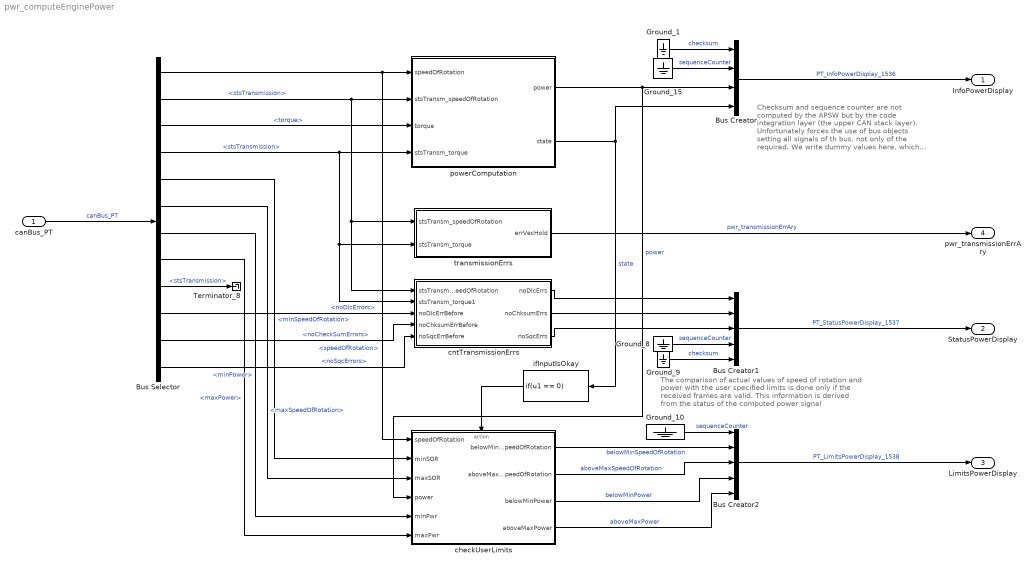
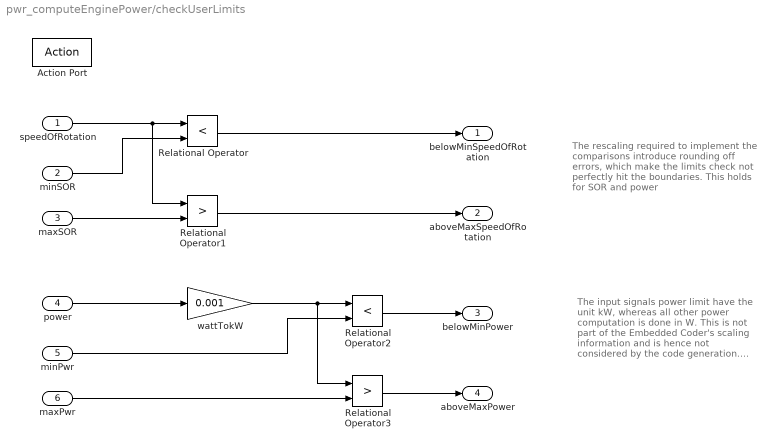
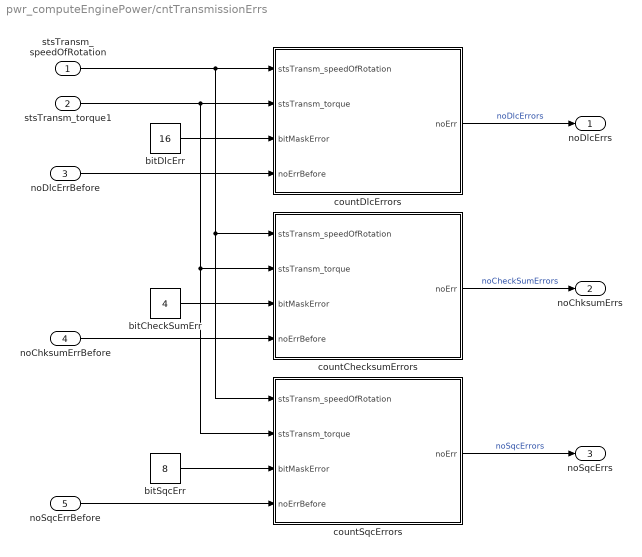
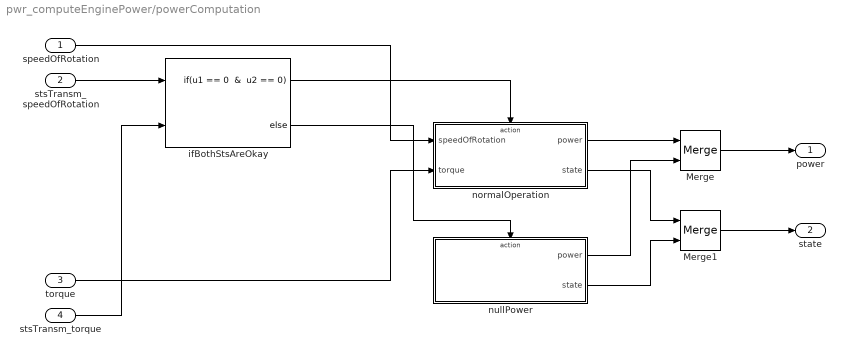
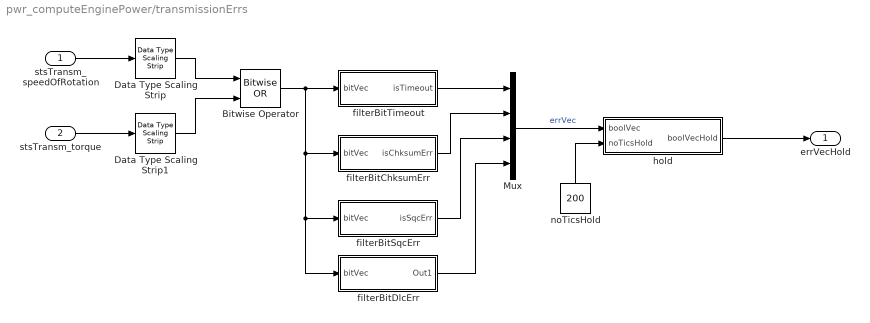
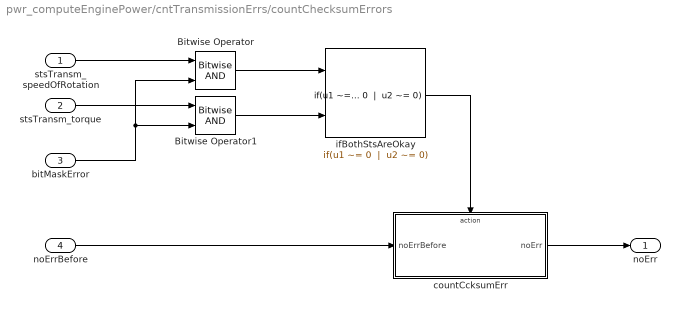
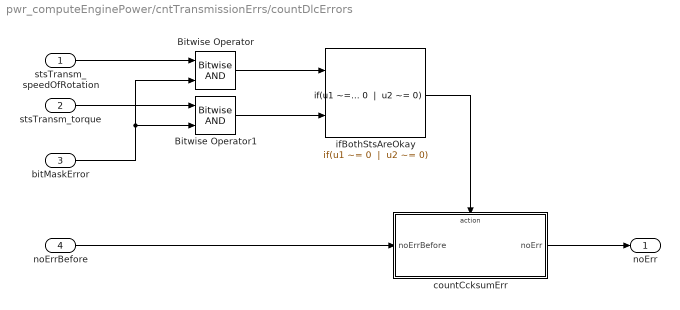
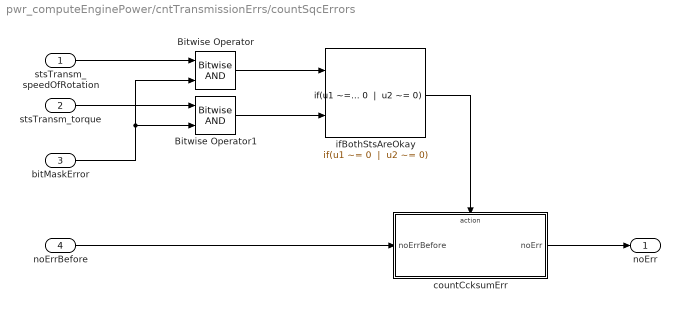
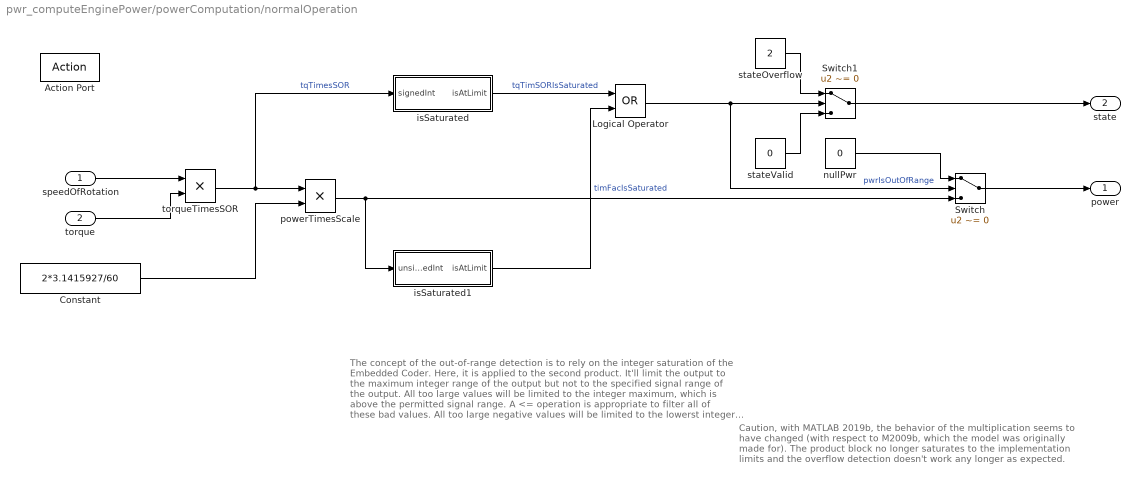
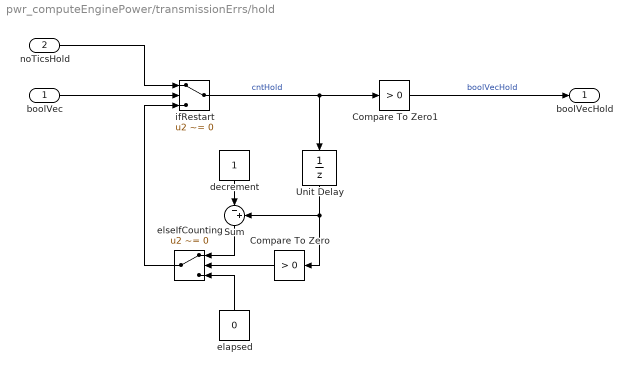
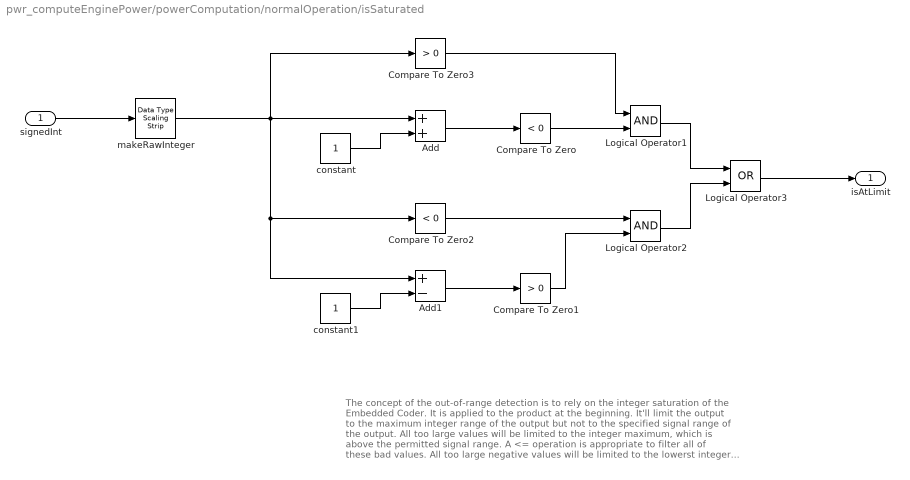
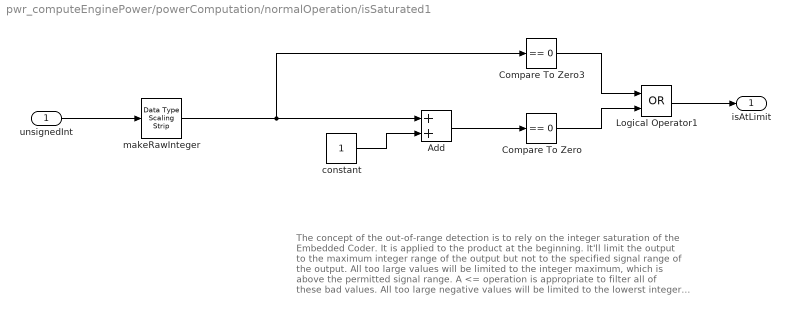
== system pwr_computeEnginePower/powerComputation/nullPower ==
  Action Port : ActionPort  PropagateVarSize=During execution  ActionPortLabel=else
  Constant : Constant  Value=0  OutDataTypeStr=Inherit: Inherit via back propagation
  stateInvalidInput : Constant  OutDataTypeStr=uint8
  power : Outport  InitialOutput=0
  state : Outport  Port=2  InitialOutput=1
  wires:
  Constant/1 -> power/1
  stateInvalidInput/1 -> state/1

== system pwr_computeEnginePower/transmissionErrs/filterBitChksumErr ==
  bitVec : Inport
  Compare To Zero : simulink/Logic and Bit Operations/Compare To Zero  relop=~=  OutDataTypeStr=boolean  ZeroCross=off
  andBitChksumErr : simulink/Logic and Bit Operations/Bitwise Operator  logicop=AND  UseBitMask=on  BitMask=4  BitMaskRealWorld=Stored Integer
  isChksumErr : Outport
  wires:
  bitVec/1 -> andBitChksumErr/1
  andBitChksumErr/1 -> Compare To Zero/1
  Compare To Zero/1 -> isChksumErr/1  "isChksumErr"

== system pwr_computeEnginePower/transmissionErrs/filterBitDlcErr ==
  bitVec : Inport
  Compare To Zero : simulink/Logic and Bit Operations/Compare To Zero  relop=~=  OutDataTypeStr=boolean  ZeroCross=off
  andBitDlcErr : simulink/Logic and Bit Operations/Bitwise Operator  logicop=AND  UseBitMask=on  BitMask=16  BitMaskRealWorld=Stored Integer
  Out1 : Outport
  wires:
  bitVec/1 -> andBitDlcErr/1
  andBitDlcErr/1 -> Compare To Zero/1
  Compare To Zero/1 -> Out1/1  "isDlcErr"

== system pwr_computeEnginePower/transmissionErrs/filterBitSqcErr ==
  note: isSqcErr
  bitVec : Inport
  Compare To Zero : simulink/Logic and Bit Operations/Compare To Zero  relop=~=  OutDataTypeStr=boolean  ZeroCross=off
  andBitSqcErr : simulink/Logic and Bit Operations/Bitwise Operator  logicop=AND  UseBitMask=on  BitMask=8  BitMaskRealWorld=Stored Integer
  isSqcErr : Outport
  wires:
  bitVec/1 -> andBitSqcErr/1
  andBitSqcErr/1 -> Compare To Zero/1
  Compare To Zero/1 -> isSqcErr/1

== system pwr_computeEnginePower/transmissionErrs/filterBitTimeout ==
  bitVec : Inport
  Compare To Zero : simulink/Logic and Bit Operations/Compare To Zero  relop=~=  OutDataTypeStr=boolean  ZeroCross=off
  andBitTimeout : simulink/Logic and Bit Operations/Bitwise Operator  logicop=AND  UseBitMask=on  BitMask=2  BitMaskRealWorld=Stored Integer
  isTimeout : Outport
  wires:
  andBitTimeout/1 -> Compare To Zero/1  "errTimeout"
  bitVec/1 -> andBitTimeout/1
  Compare To Zero/1 -> isTimeout/1  "isTimeout"

== system pwr_computeEnginePower/cntTransmissionErrs/countChecksumErrors/countCcksumErr ==
  noErrBefore : Inport
  Action Port : ActionPort  PropagateVarSize=During execution  ActionPortLabel="if(u1 ~= 0  |  u2 ~= 0)"
  Sum : Sum  Inputs=|++
  increment : Constant  OutDataTypeStr=uint8
  noErr : Outport
  wires:
  noErrBefore/1 -> Sum/1
  Sum/1 -> noErr/1  "noChecksumErrors"
  increment/1 -> Sum/2

== system pwr_computeEnginePower/cntTransmissionErrs/countDlcErrors/countCcksumErr ==
  noErrBefore : Inport
  Action Port : ActionPort  PropagateVarSize=During execution  ActionPortLabel="if(u1 ~= 0  |  u2 ~= 0)"
  Sum : Sum  Inputs=|++
  increment : Constant  OutDataTypeStr=uint8
  noErr : Outport
  wires:
  noErrBefore/1 -> Sum/1
  Sum/1 -> noErr/1  "noDlcErrors"
  increment/1 -> Sum/2

== system pwr_computeEnginePower/cntTransmissionErrs/countSqcErrors/countCcksumErr ==
  noErrBefore : Inport
  Action Port : ActionPort  PropagateVarSize=During execution  ActionPortLabel="if(u1 ~= 0  |  u2 ~= 0)"
  Sum : Sum  Inputs=|++
  increment : Constant  OutDataTypeStr=uint8
  noErr : Outport
  wires:
  increment/1 -> Sum/2
  Sum/1 -> noErr/1  "noSqcErrors"
  noErrBefore/1 -> Sum/1

/*
 * File: pwr_computeEnginePower.c
 *
 * Code generated for Simulink model 'pwr_computeEnginePower'.
 *
 * Model version                  : 5.1
 * Simulink Coder version         : 9.6 (R2021b) 14-May-2021
 * C/C++ source code generated on : Sun Mar  5 14:05:41 2023
 *
 * Target selection: ert.tlc
 * Embedded hardware selection: Atmel->AVR
 * Code generation objectives: Unspecified
 * Validation result: Not run
 */

#include "pwr_computeEnginePower.h"
#include "pwr_computeEnginePower_private.h"

/* Exported block signals */
boolean_T pwr_transmissionErrAry[4];   /* '<S35>/Compare' */

/* Block signals (default storage) */
B_pwr_computeEnginePower_T pwr_computeEnginePower_B;

/* Block states (default storage) */
DW_pwr_computeEnginePower_T pwr_computeEnginePower_DW;

/* Real-time model */
static RT_MODEL_pwr_computeEnginePow_T pwr_computeEnginePower_M_;
RT_MODEL_pwr_computeEnginePow_T *const pwr_computeEnginePower_M =
    &pwr_computeEnginePower_M_;
void mul_wide_su32(int32_T in0, uint32_T in1, uint32_T *ptrOutBitsHi, uint32_T
                   *ptrOutBitsLo)
{
    uint32_T absIn0;
    uint32_T in0Hi;
    uint32_T in1Hi;
    uint32_T in1Lo;
    uint32_T outBitsLo;
    uint32_T productHiLo;
    uint32_T productLoHi;
    absIn0 = in0 < 0L ? ~(uint32_T)in0 + 1UL : (uint32_T)in0;
    in0Hi = absIn0 >> 16UL;
    absIn0 &= 65535UL;
    in1Hi = in1 >> 16UL;
    in1Lo = in1 & 65535UL;
    productHiLo = in0Hi * in1Lo;
    productLoHi = absIn0 * in1Hi;
    absIn0 *= in1Lo;
    in1Lo = 0UL;
    outBitsLo = (productLoHi << /*MW:OvBitwiseOk*/ 16UL) + /*MW:OvCarryOk*/
        absIn0;
    if (outBitsLo < absIn0)
    {
        in1Lo = 1UL;
    }

    absIn0 = outBitsLo;
    outBitsLo += /*MW:OvCarryOk*/ productHiLo << /*MW:OvBitwiseOk*/ 16UL;
    if (outBitsLo < absIn0)
    {
        in1Lo++;
    }

    absIn0 = (((productLoHi >> 16UL) + (productHiLo >> 16UL)) + in0Hi * in1Hi) +
        in1Lo;
    if ((in1 != 0UL) && (in0 < 0L))
    {
        absIn0 = ~absIn0;
        outBitsLo = ~outBitsLo;
        outBitsLo++;
        if (outBitsLo == 0UL)
        {
            absIn0++;
        }
    }

    *ptrOutBitsHi = absIn0;
    *ptrOutBitsLo = outBitsLo;
}

int32_T mul_ssu32_hiSR(int32_T a, uint32_T b, uint32_T aShift)
{
    uint32_T u32_chi;
    uint32_T u32_clo;
    mul_wide_su32(a, b, &u32_chi, &u32_clo);
    return (int32_T)u32_chi >> aShift;
}

void mul_wide_s32(int32_T in0, int32_T in1, uint32_T *ptrOutBitsHi, uint32_T
                  *ptrOutBitsLo)
{
    uint32_T absIn0;
    uint32_T absIn1;
    uint32_T in0Hi;
    uint32_T in0Lo;
    uint32_T in1Hi;
    uint32_T productHiLo;
    uint32_T productLoHi;
    absIn0 = in0 < 0L ? ~(uint32_T)in0 + 1UL : (uint32_T)in0;
    absIn1 = in1 < 0L ? ~(uint32_T)in1 + 1UL : (uint32_T)in1;
    in0Hi = absIn0 >> 16UL;
    in0Lo = absIn0 & 65535UL;
    in1Hi = absIn1 >> 16UL;
    absIn0 = absIn1 & 65535UL;
    productHiLo = in0Hi * absIn0;
    productLoHi = in0Lo * in1Hi;
    absIn0 *= in0Lo;
    absIn1 = 0UL;
    in0Lo = (productLoHi << /*MW:OvBitwiseOk*/ 16UL) + /*MW:OvCarryOk*/ absIn0;
    if (in0Lo < absIn0)
    {
        absIn1 = 1UL;
    }

    absIn0 = in0Lo;
    in0Lo += /*MW:OvCarryOk*/ productHiLo << /*MW:OvBitwiseOk*/ 16UL;
    if (in0Lo < absIn0)
    {
        absIn1++;
    }

    absIn0 = (((productLoHi >> 16UL) + (productHiLo >> 16UL)) + in0Hi * in1Hi) +
        absIn1;
    if ((in0 != 0L) && ((in1 != 0L) && ((in0 > 0L) != (in1 > 0L))))
    {
        absIn0 = ~absIn0;
        in0Lo = ~in0Lo;
        in0Lo++;
        if (in0Lo == 0UL)
        {
            absIn0++;
        }
    }

    *ptrOutBitsHi = absIn0;
    *ptrOutBitsLo = in0Lo;
}

int32_T mul_s32_loSR_sat(int32_T a, int32_T b, uint32_T aShift)
{
    int32_T result;
    uint32_T u32_chi;
    uint32_T u32_clo;
    mul_wide_s32(a, b, &u32_chi, &u32_clo);
    u32_clo = u32_chi << /*MW:OvBitwiseOk*/ (32UL - aShift) | u32_clo >> aShift;
    u32_chi = (uint32_T)((int32_T)u32_chi >> aShift);
    if (((int32_T)u32_chi > 0L) || ((u32_chi == 0UL) && (u32_clo >= 2147483648UL)))
    {
        result = MAX_int32_T;
    }
    else if (((int32_T)u32_chi < -1L) || (((int32_T)u32_chi == -1L) && (u32_clo <
               2147483648UL)))
    {
        result = MIN_int32_T;
    }
    else
    {
        result = (int32_T)u32_clo;
    }

    return result;
}

/*
 * Output and update for atomic system:
 *    '<S2>/countChecksumErrors'
 *    '<S2>/countDlcErrors'
 *    '<S2>/countSqcErrors'
 */
void pwr_detectAndCountError(uint8_T rtu_stsTransm_speedOfRotation, uint8_T
    rtu_stsTransm_torque, uint8_T rtu_bitMaskError, uint16_T rtu_noErrBefore,
    uint16_T *rty_noErr)
{
    /* If: '<S5>/ifBothStsAreOkay' incorporates:
     *  S-Function (sfix_bitop): '<S5>/Bitwise Operator'
     *  S-Function (sfix_bitop): '<S5>/Bitwise Operator1'
     */
    if (((rtu_stsTransm_speedOfRotation & rtu_bitMaskError) != 0) ||
            ((rtu_stsTransm_torque & rtu_bitMaskError) != 0))
    {
        /* Outputs for IfAction SubSystem: '<S5>/countCcksumErr' incorporates:
         *  ActionPort: '<S8>/Action Port'
         */
        /* Sum: '<S8>/Sum' incorporates:
         *  Constant: '<S8>/increment'
         */
        *rty_noErr = rtu_noErrBefore + 1U;

        /* End of Outputs for SubSystem: '<S5>/countCcksumErr' */
    }

    /* End of If: '<S5>/ifBothStsAreOkay' */
}

/* Model step function */
void pwr_computeEnginePower_step(void)
{
    uint16_T rtb_Merge;
    uint8_T rtb_BitwiseOperator;
    uint8_T rtb_Merge1;

    /* If: '<S3>/ifBothStsAreOkay' incorporates:
     *  Inport: '<Root>/canBus_PT'
     */
    if ((cap_canBus_PT.PT_StateEcu01_1024_sts.stsTransmission == 0) &&
            (cap_canBus_PT.PT_StateEcu02_1040_sts.stsTransmission == 0))
    {
        int32_T q0;

        /* Outputs for IfAction SubSystem: '<S3>/normalOperation' incorporates:
         *  ActionPort: '<S11>/Action Port'
         */
        /* Product: '<S11>/torqueTimesSOR' */
        pwr_computeEnginePower_B.tqTimesSOR = mul_s32_loSR_sat((int32_T)
            cap_canBus_PT.PT_StateEcu01_1024_sts.signals.speedOfRotation *
            cap_canBus_PT.PT_StateEcu02_1040_sts.signals.torque, 858993459L,
            25UL);

        /* Logic: '<S13>/Logical Operator3' incorporates:
         *  Constant: '<S13>/constant'
         *  Constant: '<S13>/constant1'
         *  Constant: '<S15>/Constant'
         *  Constant: '<S16>/Constant'
         *  Constant: '<S17>/Constant'
         *  Constant: '<S18>/Constant'
         *  Logic: '<S13>/Logical Operator1'
         *  Logic: '<S13>/Logical Operator2'
         *  RelationalOperator: '<S15>/Compare'
         *  RelationalOperator: '<S16>/Compare'
         *  RelationalOperator: '<S17>/Compare'
         *  RelationalOperator: '<S18>/Compare'
         *  Sum: '<S13>/Add'
         *  Sum: '<S13>/Add1'
         */
        pwr_computeEnginePower_B.tqTimSORIsSaturated =
            (((pwr_computeEnginePower_B.tqTimesSOR > 0L) &&
              (pwr_computeEnginePower_B.tqTimesSOR + 1L < 0L)) ||
             ((pwr_computeEnginePower_B.tqTimesSOR < 0L) &&
              (pwr_computeEnginePower_B.tqTimesSOR - 1L > 0L)));

        /* Product: '<S11>/powerTimesScale' incorporates:
         *  Constant: '<S11>/Constant'
         *  Product: '<S11>/torqueTimesSOR'
         */
        q0 = mul_ssu32_hiSR(pwr_computeEnginePower_B.tqTimesSOR, 54903UL, 1UL);
        if (q0 > 2147468022L)
        {
            q0 = MAX_int32_T;
        }
        else
        {
            q0 += 15625L;
        }

        if (q0 < 0L)
        {
            q0 = 0L;
        }
        else if ((uint32_T)q0 > 65535UL)
        {
            q0 = 65535L;
        }

        /* Switch: '<S11>/Switch' incorporates:
         *  Constant: '<S11>/nullPwr'
         *  Constant: '<S11>/stateOverflow'
         *  Constant: '<S11>/stateValid'
         *  Constant: '<S14>/constant'
         *  Constant: '<S20>/Constant'
         *  Constant: '<S21>/Constant'
         *  Logic: '<S11>/Logical Operator'
         *  Logic: '<S14>/Logical Operator1'
         *  Merge: '<S3>/Merge'
         *  Product: '<S11>/powerTimesScale'
         *  RelationalOperator: '<S20>/Compare'
         *  RelationalOperator: '<S21>/Compare'
         *  Sum: '<S14>/Add'
         *  Switch: '<S11>/Switch1'
         */
        if (pwr_computeEnginePower_B.tqTimSORIsSaturated || (((uint16_T)q0 == 0U)
             || ((uint16_T)q0 + 1U == 0U)))
        {
            rtb_Merge = 15625U;
            rtb_Merge1 = 2U;
        }
        else
        {
            rtb_Merge = (uint16_T)q0;
            rtb_Merge1 = 0U;
        }

        /* End of Switch: '<S11>/Switch' */
        /* End of Outputs for SubSystem: '<S3>/normalOperation' */
    }
    else
    {
        /* Outputs for IfAction SubSystem: '<S3>/nullPower' incorporates:
         *  ActionPort: '<S12>/Action Port'
         */
        /* SignalConversion generated from: '<S12>/power' incorporates:
         *  Constant: '<S12>/Constant'
         *  Merge: '<S3>/Merge'
         */
        rtb_Merge = 15625U;

        /* SignalConversion generated from: '<S12>/state' incorporates:
         *  Constant: '<S12>/stateInvalidInput'
         */
        rtb_Merge1 = 1U;

        /* End of Outputs for SubSystem: '<S3>/nullPower' */
    }

    /* End of If: '<S3>/ifBothStsAreOkay' */

    /* Outputs for Atomic SubSystem: '<S2>/countDlcErrors' */
    /* Inport: '<Root>/canBus_PT' incorporates:
     *  Constant: '<S2>/bitCheckSumErr'
     *  Constant: '<S2>/bitDlcErr'
     *  Constant: '<S2>/bitSqcErr'
     */
    pwr_detectAndCountError(cap_canBus_PT.PT_StateEcu01_1024_sts.stsTransmission,
                            cap_canBus_PT.PT_StateEcu02_1040_sts.stsTransmission,
                            16,
                            cap_canBus_PT.PT_StatusPowerDisplay_1537_sts.signals.noDlcErrors,
                            &cap_pPT_StatusPowerDisplay_1537->noDlcErrors);

    /* End of Outputs for SubSystem: '<S2>/countDlcErrors' */

    /* Outputs for Atomic SubSystem: '<S2>/countChecksumErrors' */
    pwr_detectAndCountError(cap_canBus_PT.PT_StateEcu01_1024_sts.stsTransmission,
                            cap_canBus_PT.PT_StateEcu02_1040_sts.stsTransmission,
                            4,
                            cap_canBus_PT.PT_StatusPowerDisplay_1537_sts.signals.noCheckSumErrors,
                            &cap_pPT_StatusPowerDisplay_1537->noCheckSumErrors);

    /* End of Outputs for SubSystem: '<S2>/countChecksumErrors' */

    /* Outputs for Atomic SubSystem: '<S2>/countSqcErrors' */
    pwr_detectAndCountError(cap_canBus_PT.PT_StateEcu01_1024_sts.stsTransmission,
                            cap_canBus_PT.PT_StateEcu02_1040_sts.stsTransmission,
                            8,
                            cap_canBus_PT.PT_StatusPowerDisplay_1537_sts.signals.noSqcErrors,
                            &cap_pPT_StatusPowerDisplay_1537->noSqcErrors);

    /* End of Outputs for SubSystem: '<S2>/countSqcErrors' */

    /* S-Function (sfix_bitop): '<S4>/Bitwise Operator' incorporates:
     *  Inport: '<Root>/canBus_PT'
     */
    rtb_BitwiseOperator = (uint8_T)
        (cap_canBus_PT.PT_StateEcu01_1024_sts.stsTransmission |
         cap_canBus_PT.PT_StateEcu02_1040_sts.stsTransmission);

    /* Switch: '<S29>/ifRestart' incorporates:
     *  Constant: '<S29>/elapsed'
     *  Constant: '<S33>/Constant'
     *  Constant: '<S34>/Constant'
     *  Constant: '<S4>/noTicsHold'
     *  RelationalOperator: '<S33>/Compare'
     *  RelationalOperator: '<S34>/Compare'
     *  S-Function (sfix_bitop): '<S28>/andBitTimeout'
     *  Switch: '<S29>/elseIfCounting'
     *  UnitDelay: '<S29>/Unit Delay'
     */
    if ((rtb_BitwiseOperator & 2U) != 0U)
    {
        pwr_computeEnginePower_DW.UnitDelay_DSTATE[0] = 200U;
    }
    else if (pwr_computeEnginePower_DW.UnitDelay_DSTATE[0] > 0)
    {
        /* Switch: '<S29>/elseIfCounting' incorporates:
         *  Constant: '<S29>/decrement'
         *  Sum: '<S29>/Sum'
         *  UnitDelay: '<S29>/Unit Delay'
         */
        pwr_computeEnginePower_DW.UnitDelay_DSTATE[0]--;
    }
    else
    {
        pwr_computeEnginePower_DW.UnitDelay_DSTATE[0] = 0U;
    }

    /* RelationalOperator: '<S35>/Compare' incorporates:
     *  Constant: '<S35>/Constant'
     *  UnitDelay: '<S29>/Unit Delay'
     */
    pwr_transmissionErrAry[0] = (pwr_computeEnginePower_DW.UnitDelay_DSTATE[0] >
        0);

    /* Switch: '<S29>/ifRestart' incorporates:
     *  Constant: '<S29>/elapsed'
     *  Constant: '<S30>/Constant'
     *  Constant: '<S34>/Constant'
     *  Constant: '<S4>/noTicsHold'
     *  RelationalOperator: '<S30>/Compare'
     *  RelationalOperator: '<S34>/Compare'
     *  S-Function (sfix_bitop): '<S25>/andBitChksumErr'
     *  Switch: '<S29>/elseIfCounting'
     *  UnitDelay: '<S29>/Unit Delay'
     */
    if ((rtb_BitwiseOperator & 4U) != 0U)
    {
        pwr_computeEnginePower_DW.UnitDelay_DSTATE[1] = 200U;
    }
    else if (pwr_computeEnginePower_DW.UnitDelay_DSTATE[1] > 0)
    {
        /* Switch: '<S29>/elseIfCounting' incorporates:
         *  Constant: '<S29>/decrement'
         *  Sum: '<S29>/Sum'
         *  UnitDelay: '<S29>/Unit Delay'
         */
        pwr_computeEnginePower_DW.UnitDelay_DSTATE[1]--;
    }
    else
    {
        pwr_computeEnginePower_DW.UnitDelay_DSTATE[1] = 0U;
    }

    /* RelationalOperator: '<S35>/Compare' incorporates:
     *  Constant: '<S35>/Constant'
     *  UnitDelay: '<S29>/Unit Delay'
     */
    pwr_transmissionErrAry[1] = (pwr_computeEnginePower_DW.UnitDelay_DSTATE[1] >
        0);

    /* Switch: '<S29>/ifRestart' incorporates:
     *  Constant: '<S29>/elapsed'
     *  Constant: '<S32>/Constant'
     *  Constant: '<S34>/Constant'
     *  Constant: '<S4>/noTicsHold'
     *  RelationalOperator: '<S32>/Compare'
     *  RelationalOperator: '<S34>/Compare'
     *  S-Function (sfix_bitop): '<S27>/andBitSqcErr'
     *  Switch: '<S29>/elseIfCounting'
     *  UnitDelay: '<S29>/Unit Delay'
     */
    if ((rtb_BitwiseOperator & 8U) != 0U)
    {
        pwr_computeEnginePower_DW.UnitDelay_DSTATE[2] = 200U;
    }
    else if (pwr_computeEnginePower_DW.UnitDelay_DSTATE[2] > 0)
    {
        /* Switch: '<S29>/elseIfCounting' incorporates:
         *  Constant: '<S29>/decrement'
         *  Sum: '<S29>/Sum'
         *  UnitDelay: '<S29>/Unit Delay'
         */
        pwr_computeEnginePower_DW.UnitDelay_DSTATE[2]--;
    }
    else
    {
        pwr_computeEnginePower_DW.UnitDelay_DSTATE[2] = 0U;
    }

    /* RelationalOperator: '<S35>/Compare' incorporates:
     *  Constant: '<S35>/Constant'
     *  UnitDelay: '<S29>/Unit Delay'
     */
    pwr_transmissionErrAry[2] = (pwr_computeEnginePower_DW.UnitDelay_DSTATE[2] >
        0);

    /* Switch: '<S29>/ifRestart' incorporates:
     *  Constant: '<S29>/elapsed'
     *  Constant: '<S31>/Constant'
     *  Constant: '<S34>/Constant'
     *  Constant: '<S4>/noTicsHold'
     *  RelationalOperator: '<S31>/Compare'
     *  RelationalOperator: '<S34>/Compare'
     *  S-Function (sfix_bitop): '<S26>/andBitDlcErr'
     *  Switch: '<S29>/elseIfCounting'
     *  UnitDelay: '<S29>/Unit Delay'
     */
    if ((rtb_BitwiseOperator & 16U) != 0U)
    {
        pwr_computeEnginePower_DW.UnitDelay_DSTATE[3] = 200U;
    }
    else if (pwr_computeEnginePower_DW.UnitDelay_DSTATE[3] > 0)
    {
        /* Switch: '<S29>/elseIfCounting' incorporates:
         *  Constant: '<S29>/decrement'
         *  Sum: '<S29>/Sum'
         *  UnitDelay: '<S29>/Unit Delay'
         */
        pwr_computeEnginePower_DW.UnitDelay_DSTATE[3]--;
    }
    else
    {
        pwr_computeEnginePower_DW.UnitDelay_DSTATE[3] = 0U;
    }

    /* RelationalOperator: '<S35>/Compare' incorporates:
     *  Constant: '<S35>/Constant'
     *  UnitDelay: '<S29>/Unit Delay'
     */
    pwr_transmissionErrAry[3] = (pwr_computeEnginePower_DW.UnitDelay_DSTATE[3] >
        0);

    /* BusCreator: '<Root>/Bus Creator1' */
    cap_pPT_StatusPowerDisplay_1537->sequenceCounter = 0U;
    cap_pPT_StatusPowerDisplay_1537->checksum = 0U;

    /* BusCreator: '<Root>/Bus Creator' incorporates:
     *  Merge: '<S3>/Merge'
     */
    cap_pPT_InfoPowerDisplay_1536->checksum = 0U;
    cap_pPT_InfoPowerDisplay_1536->sequenceCounter = 0U;
    cap_pPT_InfoPowerDisplay_1536->power = rtb_Merge;
    cap_pPT_InfoPowerDisplay_1536->state = rtb_Merge1;

    /* If: '<Root>/ifInputIsOkay' */
    if (rtb_Merge1 == 0)
    {
        /* Outputs for IfAction SubSystem: '<Root>/checkUserLimits' incorporates:
         *  ActionPort: '<S1>/Action Port'
         */
        /* RelationalOperator: '<S1>/Relational Operator' incorporates:
         *  Inport: '<Root>/canBus_PT'
         */
        cap_pPT_LimitsPowerDisplay_1538->belowMinSpeedOfRotation =
            (cap_canBus_PT.PT_StateEcu01_1024_sts.signals.speedOfRotation <
             (int32_T)((uint32_T)
                       cap_canBus_PT.PT_UserLimits_2032_sts.signals.minSpeedOfRotation
                       << 4));

        /* RelationalOperator: '<S1>/Relational Operator1' incorporates:
         *  Inport: '<Root>/canBus_PT'
         */
        cap_pPT_LimitsPowerDisplay_1538->aboveMaxSpeedOfRotation =
            (cap_canBus_PT.PT_StateEcu01_1024_sts.signals.speedOfRotation >
             (int32_T)((uint32_T)
                       cap_canBus_PT.PT_UserLimits_2032_sts.signals.maxSpeedOfRotation
                       << 4));

        /* Gain: '<S1>/wattTokW' incorporates:
         *  Merge: '<S3>/Merge'
         */
        rtb_Merge = (uint16_T)((int16_T)(((rtb_Merge + -15625L) * 16777L) >> 18)
                               + 20);

        /* RelationalOperator: '<S1>/Relational Operator2' incorporates:
         *  Gain: '<S1>/wattTokW'
         *  Inport: '<Root>/canBus_PT'
         */
        cap_pPT_LimitsPowerDisplay_1538->belowMinPower = (rtb_Merge <
            cap_canBus_PT.PT_UserLimits_2032_sts.signals.minPower);

        /* RelationalOperator: '<S1>/Relational Operator3' incorporates:
         *  Gain: '<S1>/wattTokW'
         *  Inport: '<Root>/canBus_PT'
         */
        cap_pPT_LimitsPowerDisplay_1538->aboveMaxPower = (rtb_Merge >
            cap_canBus_PT.PT_UserLimits_2032_sts.signals.maxPower);

        /* End of Outputs for SubSystem: '<Root>/checkUserLimits' */
    }

    /* End of If: '<Root>/ifInputIsOkay' */

    /* BusCreator: '<Root>/Bus Creator2' */
    cap_pPT_LimitsPowerDisplay_1538->sequenceCounter = 0U;
}
